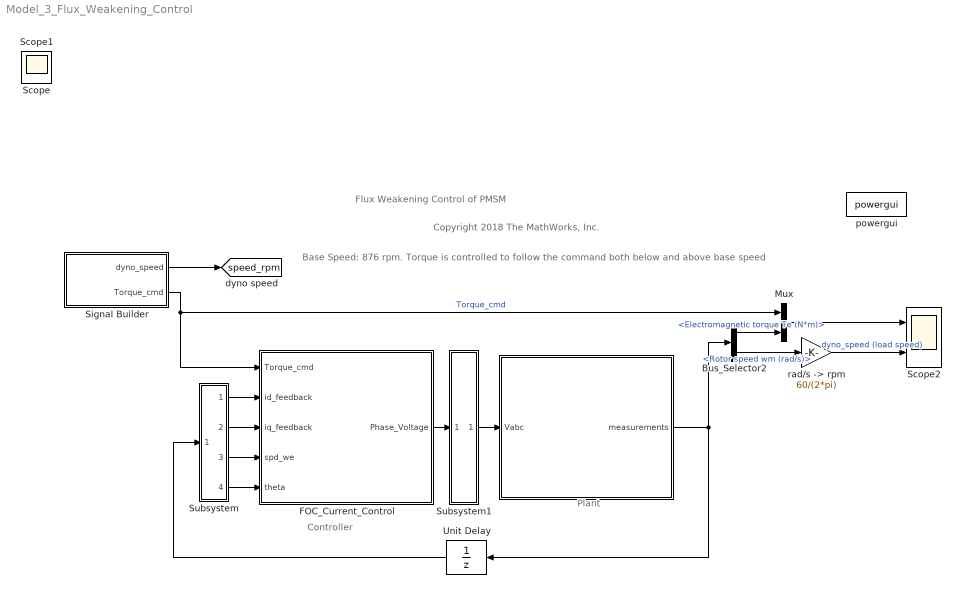
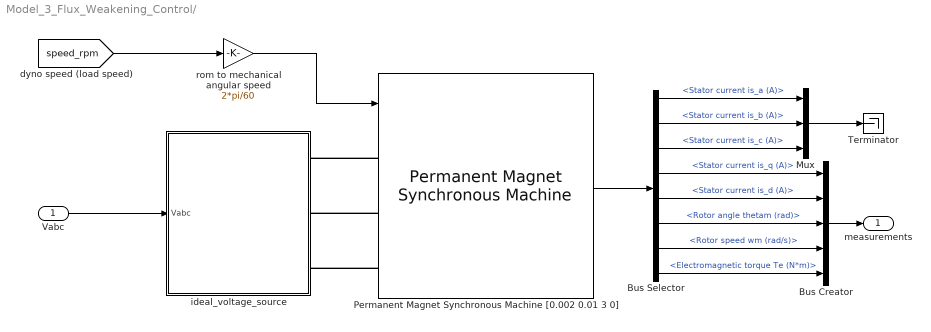
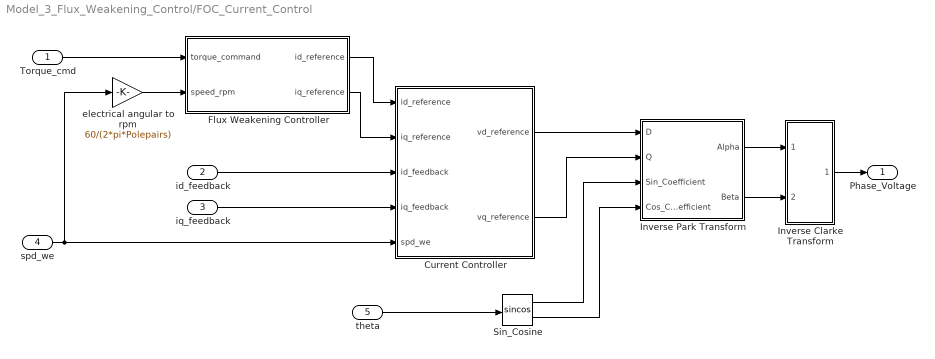
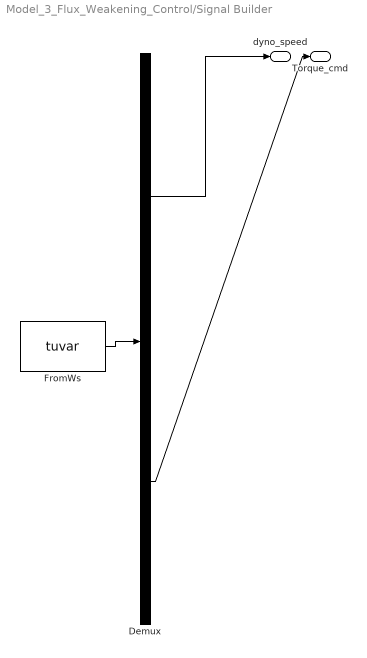
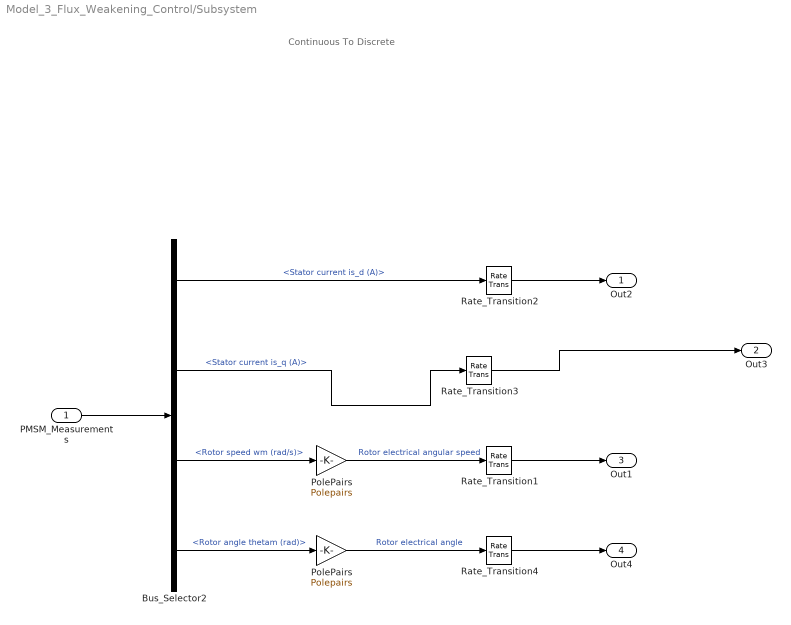
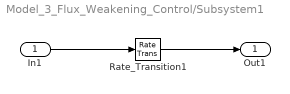
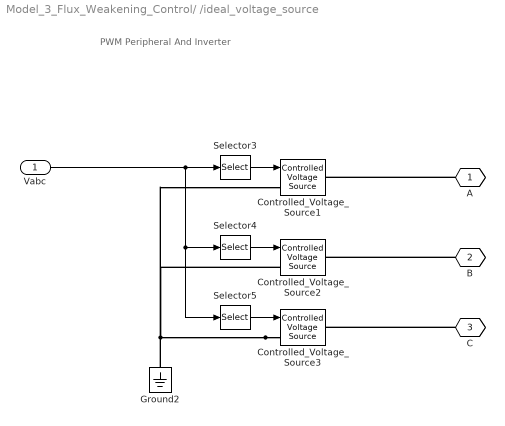
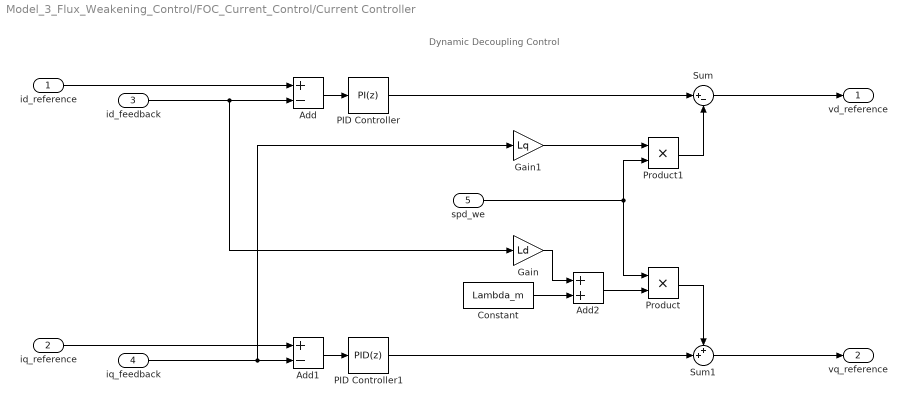
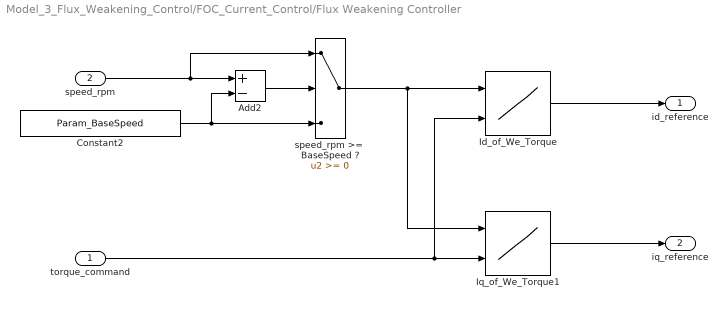
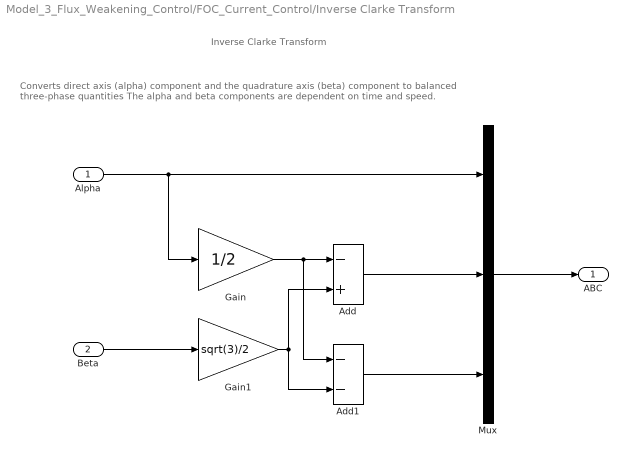
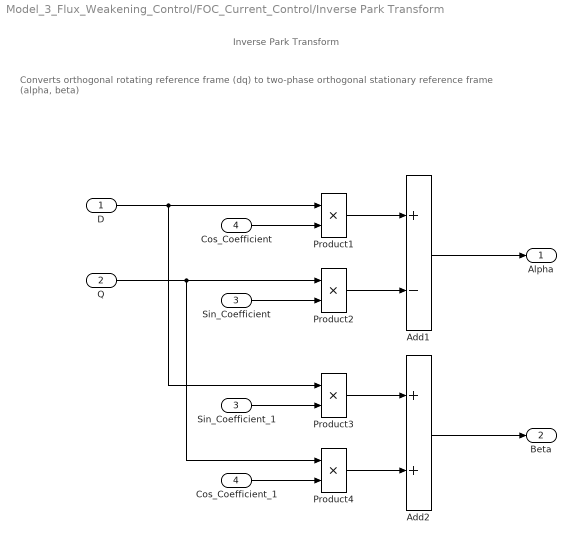
/*
 * Academic License - for use in teaching, academic research, and meeting
 * course requirements at degree granting institutions only.  Not for
 * government, commercial, or other organizational use.
 *
 * File: Model_3_Flux_Weakening_Control.c
 *
 * Code generated for Simulink model 'Model_3_Flux_Weakening_Control'.
 *
 * Model version                  : 1.62
 * Simulink Coder version         : 9.0 (R2018b) 24-May-2018
 * C/C++ source code generated on : Sat Nov  2 19:39:16 2024
 *
 * Target selection: ert.tlc
 * Embedded hardware selection: ARM Compatible->ARM Cortex
 * Code generation objectives: Unspecified
 * Validation result: Not run
 */

#include "Model_3_Flux_Weakening_Control.h"
#include "Model_3_Flux_Weakening_Control_private.h"

/* Block signals (default storage) */
B_Model_3_Flux_Weakening_Cont_T Model_3_Flux_Weakening_Contro_B;

/* Block states (default storage) */
DW_Model_3_Flux_Weakening_Con_T Model_3_Flux_Weakening_Contr_DW;

/* Real-time model */
RT_MODEL_Model_3_Flux_Weakeni_T Model_3_Flux_Weakening_Contr_M_;
RT_MODEL_Model_3_Flux_Weakeni_T *const Model_3_Flux_Weakening_Contr_M =
  &Model_3_Flux_Weakening_Contr_M_;
static void rate_monotonic_scheduler(void);
real_T look2_binlxpw(real_T u0, real_T u1, const real_T bp0[], const real_T bp1[],
                     const real_T table[], const uint32_T maxIndex[], uint32_T
                     stride)
{
  real_T frac;
  uint32_T bpIndices[2];
  real_T fractions[2];
  real_T yL_1d;
  uint32_T iRght;
  uint32_T bpIdx;
  uint32_T iLeft;

  /* Column-major Lookup 2-D
     Search method: 'binary'
     Use previous index: 'off'
     Interpolation method: 'Linear point-slope'
     Extrapolation method: 'Linear'
     Use last breakpoint for index at or above upper limit: 'off'
     Remove protection against out-of-range input in generated code: 'off'
   */
  /* Prelookup - Index and Fraction
     Index Search method: 'binary'
     Extrapolation method: 'Linear'
     Use previous index: 'off'
     Use last breakpoint for index at or above upper limit: 'off'
     Remove protection against out-of-range input in generated code: 'off'
   */
  if (u0 <= bp0[0U]) {
    iLeft = 0U;
    frac = (u0 - bp0[0U]) / (bp0[1U] - bp0[0U]);
  } else if (u0 < bp0[maxIndex[0U]]) {
    /* Binary Search */
    bpIdx = maxIndex[0U] >> 1U;
    iLeft = 0U;
    iRght = maxIndex[0U];
    while (iRght - iLeft > 1U) {
      if (u0 < bp0[bpIdx]) {
        iRght = bpIdx;
      } else {
        iLeft = bpIdx;
      }

      bpIdx = (iRght + iLeft) >> 1U;
    }

    frac = (u0 - bp0[iLeft]) / (bp0[iLeft + 1U] - bp0[iLeft]);
  } else {
    iLeft = maxIndex[0U] - 1U;
    frac = (u0 - bp0[maxIndex[0U] - 1U]) / (bp0[maxIndex[0U]] - bp0[maxIndex[0U]
      - 1U]);
  }

  fractions[0U] = frac;
  bpIndices[0U] = iLeft;

  /* Prelookup - Index and Fraction
     Index Search method: 'binary'
     Extrapolation method: 'Linear'
     Use previous index: 'off'
     Use last breakpoint for index at or above upper limit: 'off'
     Remove protection against out-of-range input in generated code: 'off'
   */
  if (u1 <= bp1[0U]) {
    iLeft = 0U;
    frac = (u1 - bp1[0U]) / (bp1[1U] - bp1[0U]);
  } else if (u1 < bp1[maxIndex[1U]]) {
    /* Binary Search */
    bpIdx = maxIndex[1U] >> 1U;
    iLeft = 0U;
    iRght = maxIndex[1U];
    while (iRght - iLeft > 1U) {
      if (u1 < bp1[bpIdx]) {
        iRght = bpIdx;
      } else {
        iLeft = bpIdx;
      }

      bpIdx = (iRght + iLeft) >> 1U;
    }

    frac = (u1 - bp1[iLeft]) / (bp1[iLeft + 1U] - bp1[iLeft]);
  } else {
    iLeft = maxIndex[1U] - 1U;
    frac = (u1 - bp1[maxIndex[1U] - 1U]) / (bp1[maxIndex[1U]] - bp1[maxIndex[1U]
      - 1U]);
  }

  /* Column-major Interpolation 2-D
     Interpolation method: 'Linear point-slope'
     Use last breakpoint for index at or above upper limit: 'off'
     Overflow mode: 'portable wrapping'
   */
  bpIdx = iLeft * stride + bpIndices[0U];
  yL_1d = (table[bpIdx + 1U] - table[bpIdx]) * fractions[0U] + table[bpIdx];
  bpIdx += stride;
  return (((table[bpIdx + 1U] - table[bpIdx]) * fractions[0U] + table[bpIdx]) -
          yL_1d) * frac + yL_1d;
}

/*
 * Set which subrates need to run this base step (base rate always runs).
 * This function must be called prior to calling the model step function
 * in order to "remember" which rates need to run this base step.  The
 * buffering of events allows for overlapping preemption.
 */
void Model_3_Flux_Weakening_Control_SetEventsForThisBaseStep(boolean_T
  *eventFlags)
{
  /* Task runs when its counter is zero, computed via rtmStepTask macro */
  eventFlags[2] = ((boolean_T)rtmStepTask(Model_3_Flux_Weakening_Contr_M, 2));
}

/*
 *   This function updates active task flag for each subrate
 * and rate transition flags for tasks that exchange data.
 * The function assumes rate-monotonic multitasking scheduler.
 * The function must be called at model base rate so that
 * the generated code self-manages all its subrates and rate
 * transition flags.
 */
static void rate_monotonic_scheduler(void)
{
  /* To ensure a deterministic data transfer between two rates,
   * data is transferred at the priority of a fast task and the frequency
   * of the slow task.  The following flags indicate when the data transfer
   * happens.  That is, a rate interaction flag is set true when both rates
   * will run, and false otherwise.
   */

  /* tid 1 shares data with slower tid rate: 2 */
  if (Model_3_Flux_Weakening_Contr_M->Timing.TaskCounters.TID[1] == 0) {
    Model_3_Flux_Weakening_Contr_M->Timing.RateInteraction.TID1_2 =
      (Model_3_Flux_Weakening_Contr_M->Timing.TaskCounters.TID[2] == 0);
  }

  /* Compute which subrates run during the next base time step.  Subrates
   * are an integer multiple of the base rate counter.  Therefore, the subtask
   * counter is reset when it reaches its limit (zero means run).
   */
  (Model_3_Flux_Weakening_Contr_M->Timing.TaskCounters.TID[2])++;
  if ((Model_3_Flux_Weakening_Contr_M->Timing.TaskCounters.TID[2]) > 9) {/* Sample time: [0.0001s, 0.0s] */
    Model_3_Flux_Weakening_Contr_M->Timing.TaskCounters.TID[2] = 0;
  }
}

/* Model step function for TID0 */
void Model_3_Flux_Weakening_Control_step0(void) /* Sample time: [0.0s, 0.0s] */
{
  real_T rtb_Fcn;
  real_T rtb_ElementaryMath_o1;
  real_T rtb_ElementaryMath_o2;
  real_T romtomechanicalangularspeed;
  real_T rtb_Fcn_tmp;

  {                                    /* Sample time: [0.0s, 0.0s] */
    rate_monotonic_scheduler();
  }

  /* FromWorkspace: '<S3>/FromWs' */
  {
    real_T *pDataValues = (real_T *)
      Model_3_Flux_Weakening_Contr_DW.FromWs_PWORK.DataPtr;
    real_T *pTimeValues = (real_T *)
      Model_3_Flux_Weakening_Contr_DW.FromWs_PWORK.TimePtr;
    int_T currTimeIndex = Model_3_Flux_Weakening_Contr_DW.FromWs_IWORK.PrevIndex;
    real_T t = Model_3_Flux_Weakening_Contr_M->Timing.t[0];

    /* Get index */
    if (t <= pTimeValues[0]) {
      currTimeIndex = 0;
    } else if (t >= pTimeValues[7]) {
      currTimeIndex = 6;
    } else {
      if (t < pTimeValues[currTimeIndex]) {
        while (t < pTimeValues[currTimeIndex]) {
          currTimeIndex--;
        }
      } else {
        while (t >= pTimeValues[currTimeIndex + 1]) {
          currTimeIndex++;
        }
      }
    }

    Model_3_Flux_Weakening_Contr_DW.FromWs_IWORK.PrevIndex = currTimeIndex;

    /* Post output */
    {
      real_T t1 = pTimeValues[currTimeIndex];
      real_T t2 = pTimeValues[currTimeIndex + 1];
      if (t1 == t2) {
        if (t < t1) {
          {
            int_T elIdx;
            for (elIdx = 0; elIdx < 2; ++elIdx) {
              (&Model_3_Flux_Weakening_Contro_B.FromWs[0])[elIdx] =
                pDataValues[currTimeIndex];
              pDataValues += 8;
            }
          }
        } else {
          {
            int_T elIdx;
            for (elIdx = 0; elIdx < 2; ++elIdx) {
              (&Model_3_Flux_Weakening_Contro_B.FromWs[0])[elIdx] =
                pDataValues[currTimeIndex + 1];
              pDataValues += 8;
            }
          }
        }
      } else {
        real_T f1 = (t2 - t) / (t2 - t1);
        real_T f2 = 1.0 - f1;
        real_T d1;
        real_T d2;
        int_T TimeIndex= currTimeIndex;

        {
          int_T elIdx;
          for (elIdx = 0; elIdx < 2; ++elIdx) {
            d1 = pDataValues[TimeIndex];
            d2 = pDataValues[TimeIndex + 1];
            (&Model_3_Flux_Weakening_Contro_B.FromWs[0])[elIdx] = (real_T)
              rtInterpolate(d1, d2, f1, f2);
            pDataValues += 8;
          }
        }
      }
    }
  }

  /* RateTransition: '<S23>/TmpRTBAtId_of_We_TorqueInport2' */
  if (Model_3_Flux_Weakening_Contr_M->Timing.RateInteraction.TID1_2) {
    Model_3_Flux_Weakening_Contro_B.TmpRTBAtId_of_We_TorqueInport2 =
      Model_3_Flux_Weakening_Contro_B.FromWs[1];

    /* RateTransition: '<S23>/TmpRTBAtIq_of_We_Torque1Inport2' */
    Model_3_Flux_Weakening_Contro_B.TmpRTBAtIq_of_We_Torque1Inport2 =
      Model_3_Flux_Weakening_Contro_B.FromWs[1];
  }

  /* End of RateTransition: '<S23>/TmpRTBAtId_of_We_TorqueInport2' */

  /* Trigonometry: '<S13>/Elementary Math' incorporates:
   *  DiscreteIntegrator: '<S11>/Discrete-Time Integrator1'
   */
  rtb_ElementaryMath_o1 = sin
    (Model_3_Flux_Weakening_Contr_DW.DiscreteTimeIntegrator1_DSTATE);
  rtb_ElementaryMath_o2 = cos
    (Model_3_Flux_Weakening_Contr_DW.DiscreteTimeIntegrator1_DSTATE);

  /* Fcn: '<S15>/Fcn' incorporates:
   *  DiscreteIntegrator: '<S17>/Discrete-Time Integrator'
   *  DiscreteIntegrator: '<S18>/Discrete-Time Integrator'
   */
  Model_3_Flux_Weakening_Contro_B.Fcn =
    Model_3_Flux_Weakening_Contr_DW.DiscreteTimeIntegrator_DSTATE *
    rtb_ElementaryMath_o2 +
    Model_3_Flux_Weakening_Contr_DW.DiscreteTimeIntegrator_DSTATE_d *
    rtb_ElementaryMath_o1;

  /* Fcn: '<S15>/Fcn1' incorporates:
   *  DiscreteIntegrator: '<S17>/Discrete-Time Integrator'
   *  DiscreteIntegrator: '<S18>/Discrete-Time Integrator'
   */
  Model_3_Flux_Weakening_Contro_B.Fcn1 =
    ((-Model_3_Flux_Weakening_Contr_DW.DiscreteTimeIntegrator_DSTATE -
      1.7320508075688772 *
      Model_3_Flux_Weakening_Contr_DW.DiscreteTimeIntegrator_DSTATE_d) *
     rtb_ElementaryMath_o2 + (1.7320508075688772 *
      Model_3_Flux_Weakening_Contr_DW.DiscreteTimeIntegrator_DSTATE -
      Model_3_Flux_Weakening_Contr_DW.DiscreteTimeIntegrator_DSTATE_d) *
     rtb_ElementaryMath_o1) * 0.5;

  /* S-Function (sfun_spssw_discc): '<S220>/State-Space' */

  /* S-Function block: <S220>/State-Space */
  {
    real_T accum;

    /*
     * Compute outputs:
     * ---------------
     */
    real_T *Ds = (real_T*)Model_3_Flux_Weakening_Contr_DW.StateSpace_PWORK.DS;
    accum = 0.0;
    accum += *(Ds++) * Model_3_Flux_Weakening_Contro_B.Fcn;
    accum += *(Ds++) * Model_3_Flux_Weakening_Contro_B.Fcn1;
    accum += *(Ds++) * Model_3_Flux_Weakening_Contro_B.Add1;
    accum += *(Ds++) * Model_3_Flux_Weakening_Contro_B.Add;
    accum += *(Ds++) * Model_3_Flux_Weakening_Contro_B.Add1_g;
    Model_3_Flux_Weakening_Contro_B.StateSpace[0] = accum;
    accum = 0.0;
    accum += *(Ds++) * Model_3_Flux_Weakening_Contro_B.Fcn;
    accum += *(Ds++) * Model_3_Flux_Weakening_Contro_B.Fcn1;
    accum += *(Ds++) * Model_3_Flux_Weakening_Contro_B.Add1;
    accum += *(Ds++) * Model_3_Flux_Weakening_Contro_B.Add;
    accum += *(Ds++) * Model_3_Flux_Weakening_Contro_B.Add1_g;
    Model_3_Flux_Weakening_Contro_B.StateSpace[1] = accum;
  }

  /* Fcn: '<S13>/Fcn2' incorporates:
   *  Fcn: '<S13>/Fcn3'
   */
  rtb_Fcn_tmp = 2.0 * Model_3_Flux_Weakening_Contro_B.StateSpace[0] +
    Model_3_Flux_Weakening_Contro_B.StateSpace[1];
  rtb_Fcn = (rtb_Fcn_tmp * rtb_ElementaryMath_o2 + 1.7320508075688772 *
             Model_3_Flux_Weakening_Contro_B.StateSpace[1] *
             rtb_ElementaryMath_o1) * 0.33333333333333331;

  /* Gain: '<S1>/rom to mechanical angular speed' */
  romtomechanicalangularspeed =
    Model_3_Flux_Weakening_Contro_P.romtomechanicalangularspeed_Gai *
    Model_3_Flux_Weakening_Contro_B.FromWs[0];

  /* Gain: '<S11>/Gain' */
  Model_3_Flux_Weakening_Contro_B.Gain =
    Model_3_Flux_Weakening_Contro_P.Gain_Gain_o * romtomechanicalangularspeed;

  /* Sum: '<S18>/Sum1' incorporates:
   *  DiscreteIntegrator: '<S17>/Discrete-Time Integrator'
   *  DiscreteIntegrator: '<S18>/Discrete-Time Integrator'
   *  Gain: '<S18>/1//Lq'
   *  Gain: '<S18>/Ld//Lq'
   *  Gain: '<S18>/R//Lq'
   *  Gain: '<S18>/lam//Lq'
   *  Product: '<S18>/Product1'
   */
  Model_3_Flux_Weakening_Contro_B.Sum1 =
    ((Model_3_Flux_Weakening_Contro_P.uLq_Gain * rtb_Fcn -
      Model_3_Flux_Weakening_Contro_P.RLq_Gain *
      Model_3_Flux_Weakening_Contr_DW.DiscreteTimeIntegrator_DSTATE) -
     Model_3_Flux_Weakening_Contr_DW.DiscreteTimeIntegrator_DSTATE_d *
     Model_3_Flux_Weakening_Contro_B.Gain *
     Model_3_Flux_Weakening_Contro_P.LdLq_Gain) -
    Model_3_Flux_Weakening_Contro_P.lamLq_Gain *
    Model_3_Flux_Weakening_Contro_B.Gain;

  /* Fcn: '<S13>/Fcn3' */
  rtb_Fcn = (rtb_Fcn_tmp * rtb_ElementaryMath_o1 + -1.7320508075688772 *
             Model_3_Flux_Weakening_Contro_B.StateSpace[1] *
             rtb_ElementaryMath_o2) * 0.33333333333333331;

  /* Sum: '<S17>/Sum' incorporates:
   *  DiscreteIntegrator: '<S17>/Discrete-Time Integrator'
   *  DiscreteIntegrator: '<S18>/Discrete-Time Integrator'
   *  Gain: '<S17>/1//Ld'
   *  Gain: '<S17>/Lq//Ld'
   *  Gain: '<S17>/R//Ld'
   *  Product: '<S17>/Product'
   */
  Model_3_Flux_Weakening_Contro_B.Sum =
    (Model_3_Flux_Weakening_Contro_P.uLd_Gain * rtb_Fcn -
     Model_3_Flux_Weakening_Contro_P.RLd_Gain *
     Model_3_Flux_Weakening_Contr_DW.DiscreteTimeIntegrator_DSTATE_d) +
    Model_3_Flux_Weakening_Contro_B.Gain *
    Model_3_Flux_Weakening_Contr_DW.DiscreteTimeIntegrator_DSTATE *
    Model_3_Flux_Weakening_Contro_P.LqLd_Gain;

  /* Fcn: '<S11>/Fcn' incorporates:
   *  DiscreteIntegrator: '<S11>/Discrete-Time Integrator1'
   */
  rtb_Fcn = (Model_3_Flux_Weakening_Contr_DW.DiscreteTimeIntegrator1_DSTATE -
             1.5707963267948966) / 4.0;

  /* UnitDelay: '<Root>/Unit Delay' incorporates:
   *  DiscreteIntegrator: '<S17>/Discrete-Time Integrator'
   *  DiscreteIntegrator: '<S18>/Discrete-Time Integrator'
   */
  if (Model_3_Flux_Weakening_Contr_M->Timing.RateInteraction.TID1_2) {
    Model_3_Flux_Weakening_Contro_B.TmpRTBAtUnitDelay_4Inport1 =
      romtomechanicalangularspeed;
    Model_3_Flux_Weakening_Contro_B.TmpRTBAtUnitDelay_2Inport1 =
      Model_3_Flux_Weakening_Contr_DW.DiscreteTimeIntegrator_DSTATE_d;
    Model_3_Flux_Weakening_Contro_B.TmpRTBAtUnitDelay_1Inport1 =
      Model_3_Flux_Weakening_Contr_DW.DiscreteTimeIntegrator_DSTATE;
    Model_3_Flux_Weakening_Contro_B.TmpRTBAtUnitDelay_3Inport1 = rtb_Fcn;
  }

  /* End of UnitDelay: '<Root>/Unit Delay' */

  /* Update for DiscreteIntegrator: '<S11>/Discrete-Time Integrator1' */
  Model_3_Flux_Weakening_Contr_DW.DiscreteTimeIntegrator1_DSTATE +=
    Model_3_Flux_Weakening_Contro_P.DiscreteTimeIntegrator1_gainval *
    Model_3_Flux_Weakening_Contro_B.Gain;

  /* Update for DiscreteIntegrator: '<S18>/Discrete-Time Integrator' */
  Model_3_Flux_Weakening_Contr_DW.DiscreteTimeIntegrator_DSTATE +=
    Model_3_Flux_Weakening_Contro_P.DiscreteTimeIntegrator_gainval *
    Model_3_Flux_Weakening_Contro_B.Sum1;

  /* Update for DiscreteIntegrator: '<S17>/Discrete-Time Integrator' */
  Model_3_Flux_Weakening_Contr_DW.DiscreteTimeIntegrator_DSTATE_d +=
    Model_3_Flux_Weakening_Contro_P.DiscreteTimeIntegrator_gainva_j *
    Model_3_Flux_Weakening_Contro_B.Sum;

  /* Update absolute time */
  /* The "clockTick0" counts the number of times the code of this task has
   * been executed. The absolute time is the multiplication of "clockTick0"
   * and "Timing.stepSize0". Size of "clockTick0" ensures timer will not
   * overflow during the application lifespan selected.
   * Timer of this task consists of two 32 bit unsigned integers.
   * The two integers represent the low bits Timing.clockTick0 and the high bits
   * Timing.clockTickH0. When the low bit overflows to 0, the high bits increment.
   */
  if (!(++Model_3_Flux_Weakening_Contr_M->Timing.clockTick0)) {
    ++Model_3_Flux_Weakening_Contr_M->Timing.clockTickH0;
  }

  Model_3_Flux_Weakening_Contr_M->Timing.t[0] =
    Model_3_Flux_Weakening_Contr_M->Timing.clockTick0 *
    Model_3_Flux_Weakening_Contr_M->Timing.stepSize0 +
    Model_3_Flux_Weakening_Contr_M->Timing.clockTickH0 *
    Model_3_Flux_Weakening_Contr_M->Timing.stepSize0 * 4294967296.0;

  /* Update absolute time */
  /* The "clockTick1" counts the number of times the code of this task has
   * been executed. The resolution of this integer timer is 1.0E-5, which is the step size
   * of the task. Size of "clockTick1" ensures timer will not overflow during the
   * application lifespan selected.
   * Timer of this task consists of two 32 bit unsigned integers.
   * The two integers represent the low bits Timing.clockTick1 and the high bits
   * Timing.clockTickH1. When the low bit overflows to 0, the high bits increment.
   */
  Model_3_Flux_Weakening_Contr_M->Timing.clockTick1++;
  if (!Model_3_Flux_Weakening_Contr_M->Timing.clockTick1) {
    Model_3_Flux_Weakening_Contr_M->Timing.clockTickH1++;
  }
}

/* Model step function for TID2 */
void Model_3_Flux_Weakening_Control_step2(void) /* Sample time: [0.0001s, 0.0s] */
{
  /* local block i/o variables */
  real_T rtb_FilterCoefficient;
  real_T rtb_IntegralGain;
  real_T rtb_IntegralGain_i;
  real_T rtb_Add;
  real_T rtb_Rotorelectricalangle;
  real_T rtb_Sum_l;
  real_T rtb_Sin_Cosine_o1;
  real_T rtb_Gain_g;

  /* Gain: '<S4>/PolePairs ' incorporates:
   *  UnitDelay: '<Root>/Unit Delay'
   */
  Model_3_Flux_Weakening_Contro_B.Integrator_n =
    Model_3_Flux_Weakening_Contro_P.Polepairs *
    Model_3_Flux_Weakening_Contr_DW.UnitDelay_4_DSTATE;

  /* Gain: '<S2>/electrical angular to rpm' */
  Model_3_Flux_Weakening_Contro_B.Add1_m = 60.0 / (6.2831853071795862 *
    Model_3_Flux_Weakening_Contro_P.Polepairs) *
    Model_3_Flux_Weakening_Contro_B.Integrator_n;

  /* Switch: '<S23>/speed_rpm >=  BaseSpeed ?' incorporates:
   *  Constant: '<S23>/Constant2'
   *  Sum: '<S23>/Add2'
   */
  if (!(Model_3_Flux_Weakening_Contro_B.Add1_m -
        Model_3_Flux_Weakening_Contro_P.Param_BaseSpeed >=
        Model_3_Flux_Weakening_Contro_P.speed_rpmBaseSpeed_Threshold)) {
    Model_3_Flux_Weakening_Contro_B.Add1_m =
      Model_3_Flux_Weakening_Contro_P.Param_BaseSpeed;
  }

  /* End of Switch: '<S23>/speed_rpm >=  BaseSpeed ?' */

  /* Sum: '<S22>/Add' incorporates:
   *  Lookup_n-D: '<S23>/Id_of_We_Torque'
   *  UnitDelay: '<Root>/Unit Delay'
   */
  rtb_Add = look2_binlxpw(Model_3_Flux_Weakening_Contro_B.Add1_m,
    Model_3_Flux_Weakening_Contro_B.TmpRTBAtId_of_We_TorqueInport2,
    Model_3_Flux_Weakening_Contro_P.ParamControlTableWeIndex,
    Model_3_Flux_Weakening_Contro_P.ParamControlTableTrqIndex,
    Model_3_Flux_Weakening_Contro_P.Param_Id_of_We_Torque,
    Model_3_Flux_Weakening_Contro_P.Id_of_We_Torque_maxIndex, 29U) -
    Model_3_Flux_Weakening_Contr_DW.UnitDelay_2_DSTATE;

  /* Sum: '<S22>/Sum' incorporates:
   *  DiscreteIntegrator: '<S82>/Integrator'
   *  Gain: '<S22>/Gain1'
   *  Gain: '<S99>/Proportional Gain'
   *  Product: '<S22>/Product1'
   *  Sum: '<S111>/Sum'
   *  UnitDelay: '<Root>/Unit Delay'
   */
  rtb_Sum_l = (Model_3_Flux_Weakening_Contro_P.Gain_P * rtb_Add +
               Model_3_Flux_Weakening_Contr_DW.Integrator_DSTATE) -
    Model_3_Flux_Weakening_Contro_P.Lq *
    Model_3_Flux_Weakening_Contr_DW.UnitDelay_1_DSTATE *
    Model_3_Flux_Weakening_Contro_B.Integrator_n;

  /* Gain: '<S4>/PolePairs' incorporates:
   *  UnitDelay: '<Root>/Unit Delay'
   */
  rtb_Rotorelectricalangle = Model_3_Flux_Weakening_Contro_P.Polepairs *
    Model_3_Flux_Weakening_Contr_DW.UnitDelay_3_DSTATE;

  /* Trigonometry: '<S2>/Sin_Cosine' */
  rtb_Sin_Cosine_o1 = sin(rtb_Rotorelectricalangle);
  rtb_Rotorelectricalangle = cos(rtb_Rotorelectricalangle);

  /* Lookup_n-D: '<S23>/Iq_of_We_Torque1' */
  Model_3_Flux_Weakening_Contro_B.Add1_m = look2_binlxpw
    (Model_3_Flux_Weakening_Contro_B.Add1_m,
     Model_3_Flux_Weakening_Contro_B.TmpRTBAtIq_of_We_Torque1Inport2,
     Model_3_Flux_Weakening_Contro_P.ParamControlTableWeIndex,
     Model_3_Flux_Weakening_Contro_P.ParamControlTableTrqIndex,
     Model_3_Flux_Weakening_Contro_P.Param_Iq_of_We_Torque,
     Model_3_Flux_Weakening_Contro_P.Iq_of_We_Torque1_maxIndex, 29U);

  /* Sum: '<S22>/Add1' incorporates:
   *  UnitDelay: '<Root>/Unit Delay'
   */
  Model_3_Flux_Weakening_Contro_B.Add1_m -=
    Model_3_Flux_Weakening_Contr_DW.UnitDelay_1_DSTATE;

  /* Gain: '<S188>/Filter Coefficient' incorporates:
   *  DiscreteIntegrator: '<S160>/Filter'
   *  Gain: '<S155>/Derivative Gain'
   *  Sum: '<S160>/SumD'
   */
  rtb_FilterCoefficient = (Model_3_Flux_Weakening_Contro_P.PIDController1_D *
    Model_3_Flux_Weakening_Contro_B.Add1_m -
    Model_3_Flux_Weakening_Contr_DW.Filter_DSTATE) *
    Model_3_Flux_Weakening_Contro_P.PIDController1_N;

  /* Sum: '<S22>/Sum1' incorporates:
   *  Constant: '<S22>/Constant'
   *  DiscreteIntegrator: '<S178>/Integrator'
   *  Gain: '<S195>/Proportional Gain'
   *  Gain: '<S22>/Gain'
   *  Product: '<S22>/Product'
   *  Sum: '<S208>/Sum'
   *  Sum: '<S22>/Add2'
   *  UnitDelay: '<Root>/Unit Delay'
   */
  Model_3_Flux_Weakening_Contro_B.Integrator_n =
    (Model_3_Flux_Weakening_Contro_P.Ld *
     Model_3_Flux_Weakening_Contr_DW.UnitDelay_2_DSTATE +
     Model_3_Flux_Weakening_Contro_P.Lambda_m) *
    Model_3_Flux_Weakening_Contro_B.Integrator_n +
    ((Model_3_Flux_Weakening_Contro_P.Gain_P *
      Model_3_Flux_Weakening_Contro_B.Add1_m +
      Model_3_Flux_Weakening_Contr_DW.Integrator_DSTATE_a) +
     rtb_FilterCoefficient);

  /* Sum: '<S25>/Add1' incorporates:
   *  Product: '<S25>/Product1'
   *  Product: '<S25>/Product2'
   */
  Model_3_Flux_Weakening_Contro_B.Add1 = rtb_Sum_l * rtb_Rotorelectricalangle -
    Model_3_Flux_Weakening_Contro_B.Integrator_n * rtb_Sin_Cosine_o1;

  /* Gain: '<S24>/Gain' */
  rtb_Gain_g = Model_3_Flux_Weakening_Contro_P.Gain_Gain *
    Model_3_Flux_Weakening_Contro_B.Add1;

  /* Gain: '<S24>/Gain1' incorporates:
   *  Product: '<S25>/Product3'
   *  Product: '<S25>/Product4'
   *  Sum: '<S25>/Add2'
   */
  Model_3_Flux_Weakening_Contro_B.Integrator_n = (rtb_Sum_l * rtb_Sin_Cosine_o1
    + Model_3_Flux_Weakening_Contro_B.Integrator_n * rtb_Rotorelectricalangle) *
    Model_3_Flux_Weakening_Contro_P.Gain1_Gain;

  /* Sum: '<S24>/Add' */
  Model_3_Flux_Weakening_Contro_B.Add =
    Model_3_Flux_Weakening_Contro_B.Integrator_n - rtb_Gain_g;

  /* Sum: '<S24>/Add1' */
  Model_3_Flux_Weakening_Contro_B.Add1_g = (0.0 - rtb_Gain_g) -
    Model_3_Flux_Weakening_Contro_B.Integrator_n;

  /* Gain: '<S168>/Integral Gain' */
  rtb_IntegralGain = Model_3_Flux_Weakening_Contro_P.Gain_I *
    Model_3_Flux_Weakening_Contro_B.Add1_m;

  /* Gain: '<S72>/Integral Gain' */
  rtb_IntegralGain_i = Model_3_Flux_Weakening_Contro_P.Gain_I * rtb_Add;

  /* Update for UnitDelay: '<Root>/Unit Delay' */
  Model_3_Flux_Weakening_Contr_DW.UnitDelay_4_DSTATE =
    Model_3_Flux_Weakening_Contro_B.TmpRTBAtUnitDelay_4Inport1;
  Model_3_Flux_Weakening_Contr_DW.UnitDelay_2_DSTATE =
    Model_3_Flux_Weakening_Contro_B.TmpRTBAtUnitDelay_2Inport1;

  /* Update for DiscreteIntegrator: '<S82>/Integrator' */
  Model_3_Flux_Weakening_Contr_DW.Integrator_DSTATE +=
    Model_3_Flux_Weakening_Contro_P.Integrator_gainval * rtb_IntegralGain_i;

  /* Update for UnitDelay: '<Root>/Unit Delay' */
  Model_3_Flux_Weakening_Contr_DW.UnitDelay_1_DSTATE =
    Model_3_Flux_Weakening_Contro_B.TmpRTBAtUnitDelay_1Inport1;
  Model_3_Flux_Weakening_Contr_DW.UnitDelay_3_DSTATE =
    Model_3_Flux_Weakening_Contro_B.TmpRTBAtUnitDelay_3Inport1;

  /* Update for DiscreteIntegrator: '<S178>/Integrator' */
  Model_3_Flux_Weakening_Contr_DW.Integrator_DSTATE_a +=
    Model_3_Flux_Weakening_Contro_P.Integrator_gainval_k * rtb_IntegralGain;

  /* Update for DiscreteIntegrator: '<S160>/Filter' */
  Model_3_Flux_Weakening_Contr_DW.Filter_DSTATE +=
    Model_3_Flux_Weakening_Contro_P.Filter_gainval * rtb_FilterCoefficient;
}

/* Model step wrapper function for compatibility with a static main program */
void Model_3_Flux_Weakening_Control_step(int_T tid)
{
  switch (tid) {
   case 0 :
    Model_3_Flux_Weakening_Control_step0();
    break;

   case 2 :
    Model_3_Flux_Weakening_Control_step2();
    break;

   default :
    break;
  }
}
